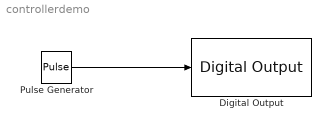
/*
 * Academic License - for use in teaching, academic research, and meeting
 * course requirements at degree granting institutions only.  Not for
 * government, commercial, or other organizational use.
 *
 * File: controllerdemo.c
 *
 * Code generated for Simulink model 'controllerdemo'.
 *
 * Model version                  : 1.2
 * Simulink Coder version         : 24.2 (R2024b) 21-Jun-2024
 * C/C++ source code generated on : Mon Feb 16 19:57:05 2026
 *
 * Target selection: ert.tlc
 * Embedded hardware selection: Atmel->AVR
 * Code generation objectives: Unspecified
 * Validation result: Not run
 */

#include "controllerdemo.h"
#include "controllerdemo_private.h"
#include "rtwtypes.h"
#include <math.h>

/* Block states (default storage) */
DW_controllerdemo_T controllerdemo_DW;

/* Real-time model */
static RT_MODEL_controllerdemo_T controllerdemo_M_;
RT_MODEL_controllerdemo_T *const controllerdemo_M = &controllerdemo_M_;
real_T rt_roundd_snf(real_T u)
{
  real_T y;
  if (fabs(u) < 4.503599627370496E+15) {
    if (u >= 0.5) {
      y = floor(u + 0.5);
    } else if (u > -0.5) {
      y = u * 0.0;
    } else {
      y = ceil(u - 0.5);
    }
  } else {
    y = u;
  }

  return y;
}

/* Model step function */
void controllerdemo_step(void)
{
  real_T rtb_PulseGenerator;
  uint8_T tmp;

  /* DiscretePulseGenerator: '<Root>/Pulse Generator' */
  rtb_PulseGenerator = (controllerdemo_DW.clockTickCounter <
                        controllerdemo_P.PulseGenerator_Duty) &&
    (controllerdemo_DW.clockTickCounter >= 0L) ?
    controllerdemo_P.PulseGenerator_Amp : 0.0;
  if (controllerdemo_DW.clockTickCounter >=
      controllerdemo_P.PulseGenerator_Period - 1.0) {
    controllerdemo_DW.clockTickCounter = 0L;
  } else {
    controllerdemo_DW.clockTickCounter++;
  }

  /* End of DiscretePulseGenerator: '<Root>/Pulse Generator' */

  /* MATLABSystem: '<Root>/Digital Output' */
  rtb_PulseGenerator = rt_roundd_snf(rtb_PulseGenerator);
  if (rtb_PulseGenerator < 256.0) {
    if (rtb_PulseGenerator >= 0.0) {
      tmp = (uint8_T)rtb_PulseGenerator;
    } else {
      tmp = 0U;
    }
  } else {
    tmp = MAX_uint8_T;
  }

  writeDigitalPin(9, tmp);

  /* End of MATLABSystem: '<Root>/Digital Output' */
}
